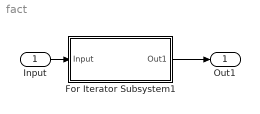
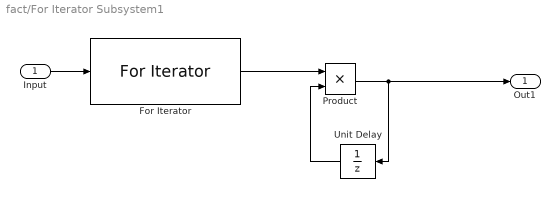
/*
 * File: fact.c
 *
 * Code generated for Simulink model 'fact'.
 *
 * Model version                  : 1.20
 * Simulink Coder version         : 9.3 (R2020a) 18-Nov-2019
 * C/C++ source code generated on : Wed Mar 30 14:43:50 2022
 *
 * Target selection: ert.tlc
 * Embedded hardware selection: Intel->x86-64 (Windows64)
 * Code generation objectives: Unspecified
 * Validation result: Not run
 */

#include "fact.h"
#include "fact_private.h"

/* External inputs (root inport signals with default storage) */
ExtU_fact_T fact_U;

/* External outputs (root outports fed by signals with default storage) */
ExtY_fact_T fact_Y;

/* Real-time model */
RT_MODEL_fact_T fact_M_;
RT_MODEL_fact_T *const fact_M = &fact_M_;

/* Model step function */
void fact_step(void)
{
  int32_T tmp;
  int32_T s1_iter;
  real_T UnitDelay_DSTATE;

  /* Outputs for Iterator SubSystem: '<Root>/For Iterator Subsystem1' incorporates:
   *  ForIterator: '<S1>/For Iterator'
   */
  /* InitializeConditions for UnitDelay: '<S1>/Unit Delay' */
  UnitDelay_DSTATE = 1.0;

  /* Inport: '<Root>/Input' */
  if (fact_U.Input < 2.147483648E+9) {
    if (fact_U.Input >= -2.147483648E+9) {
      tmp = (int32_T)fact_U.Input;
    } else {
      tmp = MIN_int32_T;
    }
  } else {
    tmp = MAX_int32_T;
  }

  /* End of Inport: '<Root>/Input' */
  if (tmp > 2147483646) {
    tmp = 2147483646;
  } else {
    if (tmp < 0) {
      tmp = 0;
    }
  }

  for (s1_iter = 1; s1_iter <= tmp; s1_iter++) {
    /* Outport: '<Root>/Out1' incorporates:
     *  Product: '<S1>/Product'
     *  UnitDelay: '<S1>/Unit Delay'
     */
    fact_Y.Out1 = (real_T)s1_iter * UnitDelay_DSTATE;

    /* Update for UnitDelay: '<S1>/Unit Delay' incorporates:
     *  Outport: '<Root>/Out1'
     */
    UnitDelay_DSTATE = fact_Y.Out1;
  }

  /* End of Outputs for SubSystem: '<Root>/For Iterator Subsystem1' */
}
